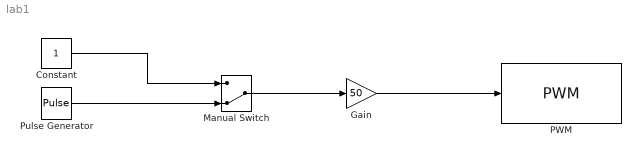
/*
 * File: lab1.c
 *
 * Code generated for Simulink model 'lab1'.
 *
 * Model version                  : 1.2
 * Simulink Coder version         : 8.9 (R2015b) 13-Aug-2015
 * C/C++ source code generated on : Tue Mar 21 16:59:10 2017
 *
 * Target selection: ert.tlc
 * Embedded hardware selection: Atmel->AVR
 * Code generation objectives: Unspecified
 * Validation result: Not run
 */

#include "lab1.h"
#include "lab1_private.h"

/* Block states (auto storage) */
DW_lab1_T lab1_DW;

/* Real-time model */
RT_MODEL_lab1_T lab1_M_;
RT_MODEL_lab1_T *const lab1_M = &lab1_M_;

/* Model step function */
void lab1_step(void)
{
  real_T rtb_Gain;
  uint8_T rtb_Gain_0;

  /* DiscretePulseGenerator: '<Root>/Pulse Generator' */
  rtb_Gain = (lab1_DW.clockTickCounter < lab1_P.PulseGenerator_Duty) &&
    (lab1_DW.clockTickCounter >= 0L) ? lab1_P.PulseGenerator_Amp : 0.0;
  if (lab1_DW.clockTickCounter >= lab1_P.PulseGenerator_Period - 1.0) {
    lab1_DW.clockTickCounter = 0L;
  } else {
    lab1_DW.clockTickCounter++;
  }

  /* End of DiscretePulseGenerator: '<Root>/Pulse Generator' */

  /* ManualSwitch: '<Root>/Manual Switch' incorporates:
   *  Constant: '<Root>/Constant'
   */
  if (lab1_P.ManualSwitch_CurrentSetting == 1) {
    rtb_Gain = lab1_P.Constant_Value;
  }

  /* End of ManualSwitch: '<Root>/Manual Switch' */

  /* Gain: '<Root>/Gain' */
  rtb_Gain *= lab1_P.Gain_Gain;

  /* DataTypeConversion: '<S1>/Data Type Conversion' */
  if (rtb_Gain < 256.0) {
    if (rtb_Gain >= 0.0) {
      rtb_Gain_0 = (uint8_T)rtb_Gain;
    } else {
      rtb_Gain_0 = 0U;
    }
  } else {
    rtb_Gain_0 = MAX_uint8_T;
  }

  /* End of DataTypeConversion: '<S1>/Data Type Conversion' */

  /* S-Function (arduinoanalogoutput_sfcn): '<S1>/PWM' */
  MW_analogWrite(lab1_P.PWM_pinNumber, rtb_Gain_0);
}
